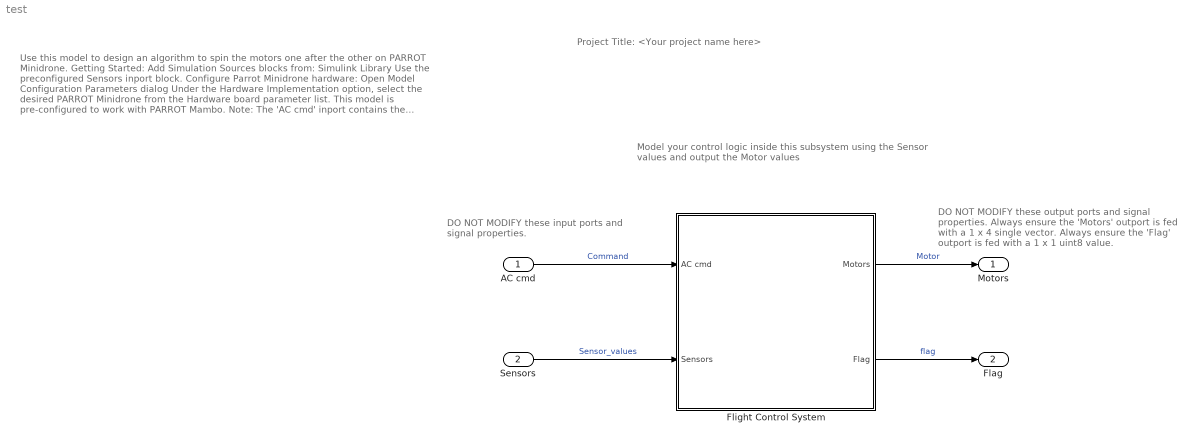
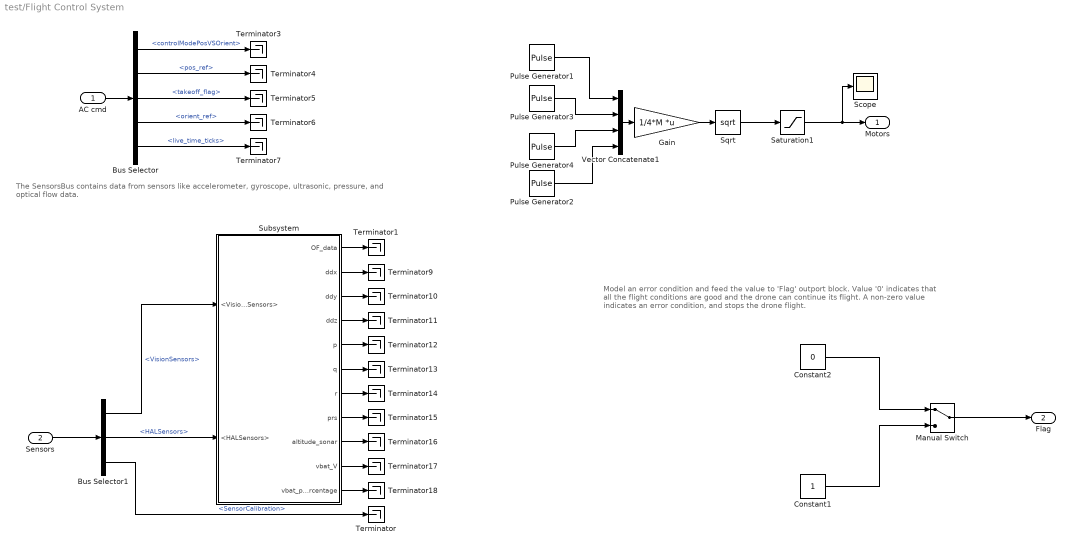
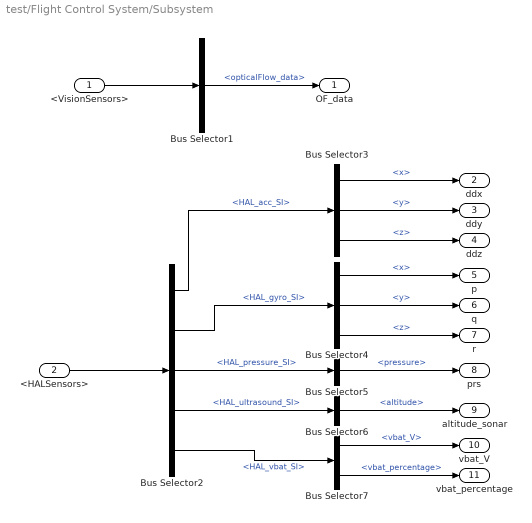
/*
 * test.c
 *
 * Academic License - for use in teaching, academic research, and meeting
 * course requirements at degree granting institutions only.  Not for
 * government, commercial, or other organizational use.
 *
 * Code generation for model "test".
 *
 * Model version              : 1.1
 * Simulink Coder version : 9.5 (R2021a) 14-Nov-2020
 * C source code generated on : Tue Nov 23 17:48:54 2021
 *
 * Target selection: ert.tlc
 * Note: GRT includes extra infrastructure and instrumentation for prototyping
 * Embedded hardware selection: ARM Compatible->ARM 9
 * Code generation objectives: Unspecified
 * Validation result: Not run
 */

#include "test.h"
#include "test_private.h"

/* Exported block signals */
CommandBus cmd_inport;                 /* '<Root>/AC cmd' */
SensorsBus sensor_inport;              /* '<Root>/Sensors' */
real32_T motors_outport[4];            /* '<S1>/Saturation1' */
uint8_T flag_outport;                  /* '<S1>/Manual Switch' */

/* Block states (default storage) */
DW_test_T test_DW;

/* External outputs (root outports fed by signals with default storage) */
ExtY_test_T test_Y;

/* Real-time model */
static RT_MODEL_test_T test_M_;
RT_MODEL_test_T *const test_M = &test_M_;

/* Model step function */
void test_step(void)
{
  real_T rtb_VectorConcatenate1_idx_0;
  real_T rtb_VectorConcatenate1_idx_1;
  real_T rtb_VectorConcatenate1_idx_2;
  real_T rtb_VectorConcatenate1_idx_3;
  real_T u0;
  int32_T i;

  /* DiscretePulseGenerator: '<S1>/Pulse Generator1' */
  rtb_VectorConcatenate1_idx_0 = (test_DW.clockTickCounter <
    test_P.PulseGenerator1_Duty) && (test_DW.clockTickCounter >= 0) ? test_P.W[0]
    : 0.0;
  if (test_DW.clockTickCounter >= test_P.PulseGenerator1_Period - 1.0) {
    test_DW.clockTickCounter = 0;
  } else {
    test_DW.clockTickCounter++;
  }

  /* End of DiscretePulseGenerator: '<S1>/Pulse Generator1' */

  /* DiscretePulseGenerator: '<S1>/Pulse Generator3' */
  rtb_VectorConcatenate1_idx_1 = (test_DW.clockTickCounter_h <
    test_P.PulseGenerator3_Duty) && (test_DW.clockTickCounter_h >= 0) ?
    test_P.W[1] : 0.0;
  if (test_DW.clockTickCounter_h >= test_P.PulseGenerator3_Period - 1.0) {
    test_DW.clockTickCounter_h = 0;
  } else {
    test_DW.clockTickCounter_h++;
  }

  /* End of DiscretePulseGenerator: '<S1>/Pulse Generator3' */

  /* DiscretePulseGenerator: '<S1>/Pulse Generator4' */
  rtb_VectorConcatenate1_idx_2 = (test_DW.clockTickCounter_a <
    test_P.PulseGenerator4_Duty) && (test_DW.clockTickCounter_a >= 0) ?
    test_P.W[2] : 0.0;
  if (test_DW.clockTickCounter_a >= test_P.PulseGenerator4_Period - 1.0) {
    test_DW.clockTickCounter_a = 0;
  } else {
    test_DW.clockTickCounter_a++;
  }

  /* End of DiscretePulseGenerator: '<S1>/Pulse Generator4' */

  /* DiscretePulseGenerator: '<S1>/Pulse Generator2' */
  rtb_VectorConcatenate1_idx_3 = (test_DW.clockTickCounter_n <
    test_P.PulseGenerator2_Duty) && (test_DW.clockTickCounter_n >= 0) ?
    test_P.W[3] : 0.0;
  if (test_DW.clockTickCounter_n >= test_P.PulseGenerator2_Period - 1.0) {
    test_DW.clockTickCounter_n = 0;
  } else {
    test_DW.clockTickCounter_n++;
  }

  /* End of DiscretePulseGenerator: '<S1>/Pulse Generator2' */
  for (i = 0; i < 4; i++) {
    /* Sqrt: '<S1>/Sqrt' incorporates:
     *  Gain: '<S1>/Gain'
     */
    u0 = sqrt(test_P.M[i + 12] * 0.25 * rtb_VectorConcatenate1_idx_3 +
              (test_P.M[i + 8] * 0.25 * rtb_VectorConcatenate1_idx_2 +
               (test_P.M[i + 4] * 0.25 * rtb_VectorConcatenate1_idx_1 + 0.25 *
                test_P.M[i] * rtb_VectorConcatenate1_idx_0)));

    /* Saturate: '<S1>/Saturation1' */
    if (u0 > test_P.Saturation1_UpperSat) {
      /* Saturate: '<S1>/Saturation1' incorporates:
       *  Sqrt: '<S1>/Sqrt'
       */
      motors_outport[i] = test_P.Saturation1_UpperSat;
    } else if (u0 < test_P.Saturation1_LowerSat) {
      /* Saturate: '<S1>/Saturation1' incorporates:
       *  Sqrt: '<S1>/Sqrt'
       */
      motors_outport[i] = test_P.Saturation1_LowerSat;
    } else {
      /* Saturate: '<S1>/Saturation1' incorporates:
       *  Sqrt: '<S1>/Sqrt'
       */
      motors_outport[i] = (real32_T)u0;
    }

    /* End of Saturate: '<S1>/Saturation1' */

    /* Outport: '<Root>/Motors' incorporates:
     *  Saturate: '<S1>/Saturation1'
     */
    test_Y.Motors[i] = motors_outport[i];
  }

  /* ManualSwitch: '<S1>/Manual Switch' */
  if (test_P.ManualSwitch_CurrentSetting == 1) {
    /* ManualSwitch: '<S1>/Manual Switch' incorporates:
     *  Constant: '<S1>/Constant2'
     */
    flag_outport = test_P.Constant2_Value;
  } else {
    /* ManualSwitch: '<S1>/Manual Switch' incorporates:
     *  Constant: '<S1>/Constant1'
     */
    flag_outport = test_P.Constant1_Value;
  }

  /* End of ManualSwitch: '<S1>/Manual Switch' */

  /* Outport: '<Root>/Flag' */
  test_Y.Flag = flag_outport;

  /* Scope: '<S1>/Scope' */
  {
    StructLogVar *svar = (StructLogVar *)test_DW.Scope_PWORK.LoggedData;
    LogVar *var = svar->signals.values;

    /* time */
    {
      double locTime = test_M->Timing.taskTime0;
      ;
      rt_UpdateLogVar((LogVar *)svar->time, &locTime, 0);
    }

    /* signals */
    {
      real32_T up0[4];
      up0[0] = motors_outport[0];
      up0[1] = motors_outport[1];
      up0[2] = motors_outport[2];
      up0[3] = motors_outport[3];
      rt_UpdateLogVar((LogVar *)var, up0, 0);
    }
  }

  /* Matfile logging */
  rt_UpdateTXYLogVars(test_M->rtwLogInfo, (&test_M->Timing.taskTime0));

  /* signal main to stop simulation */
  {                                    /* Sample time: [0.005s, 0.0s] */
    if ((rtmGetTFinal(test_M)!=-1) &&
        !((rtmGetTFinal(test_M)-test_M->Timing.taskTime0) >
          test_M->Timing.taskTime0 * (DBL_EPSILON))) {
      rtmSetErrorStatus(test_M, "Simulation finished");
    }
  }

  /* Update absolute time for base rate */
  /* The "clockTick0" counts the number of times the code of this task has
   * been executed. The absolute time is the multiplication of "clockTick0"
   * and "Timing.stepSize0". Size of "clockTick0" ensures timer will not
   * overflow during the application lifespan selected.
   * Timer of this task consists of two 32 bit unsigned integers.
   * The two integers represent the low bits Timing.clockTick0 and the high bits
   * Timing.clockTickH0. When the low bit overflows to 0, the high bits increment.
   */
  if (!(++test_M->Timing.clockTick0)) {
    ++test_M->Timing.clockTickH0;
  }

  test_M->Timing.taskTime0 = test_M->Timing.clockTick0 *
    test_M->Timing.stepSize0 + test_M->Timing.clockTickH0 *
    test_M->Timing.stepSize0 * 4294967296.0;
}
